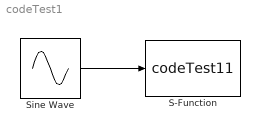
/*
 * File: codeTest1.c
 *
 * Code generated for Simulink model 'codeTest1'.
 *
 * Model version                  : 1.0
 * Simulink Coder version         : 9.9 (R2023a) 19-Nov-2022
 * C/C++ source code generated on : Mon Dec 11 14:04:46 2023
 *
 * Target selection: ert.tlc
 * Embedded hardware selection: Intel->x86-64 (Windows64)
 * Code generation objectives:
 *    1. Execution efficiency
 *    2. RAM efficiency
 * Validation result: Not run
 */

#include "codeTest1.h"
#include <math.h>
#include "codeTest1_private.h"
#include "rt_nonfinite.h"

/* Block signals and states (default storage) */
DW rtDW;

/* Real-time model */
static RT_MODEL rtM_;
RT_MODEL *const rtM = &rtM_;

/* Model step function */
void codeTest1_step(void)
{
  /* Sin: '<Root>/Sine Wave' */
  rtDW.SineWave = sin(rtM->Timing.t[0]);

  /* S-Function (codeTest11): '<Root>/S-Function' */

  /* Level2 S-Function Block: '<Root>/S-Function' (codeTest11) */
  {
    SimStruct *rts = rtM->childSfunctions[0];
    sfcnOutputs(rts,0);
  }

  /* Update for S-Function (codeTest11): '<Root>/S-Function' */
  /* Level2 S-Function Block: '<Root>/S-Function' (codeTest11) */
  {
    SimStruct *rts = rtM->childSfunctions[0];
    sfcnUpdate(rts,0);
    if (ssGetErrorStatus(rts) != (NULL))
      return;
  }

  /* Update absolute time for base rate */
  /* The "clockTick0" counts the number of times the code of this task has
   * been executed. The absolute time is the multiplication of "clockTick0"
   * and "Timing.stepSize0". Size of "clockTick0" ensures timer will not
   * overflow during the application lifespan selected.
   */
  rtM->Timing.t[0] =
    ((time_T)(++rtM->Timing.clockTick0)) * rtM->Timing.stepSize0;
}
